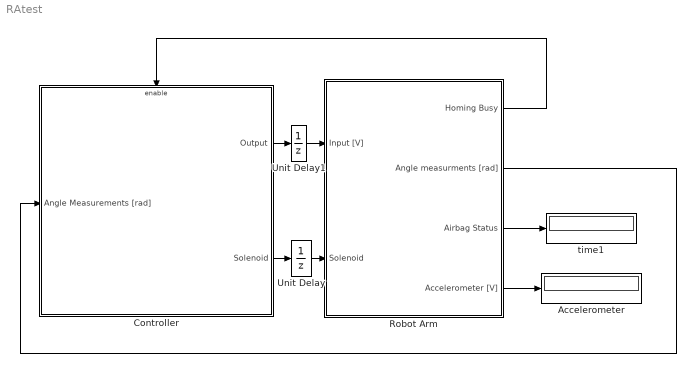
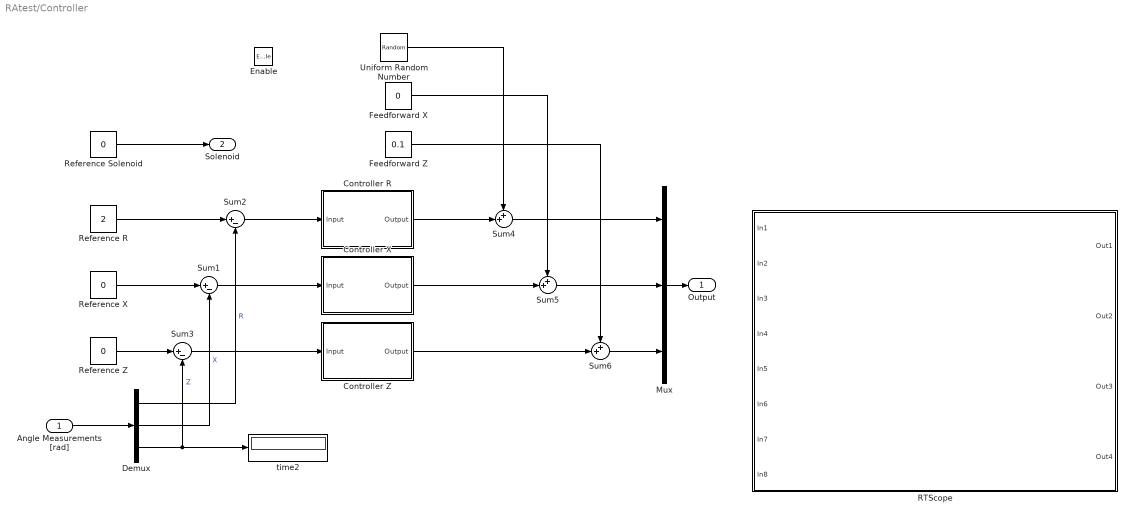
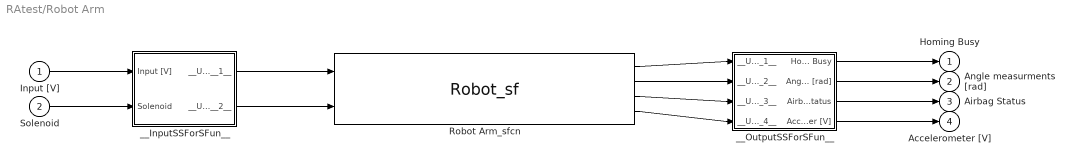
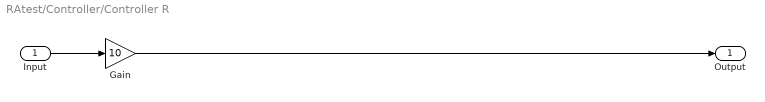
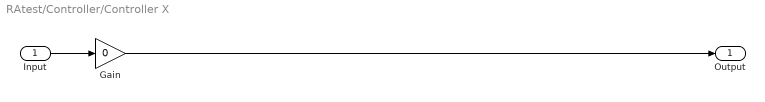
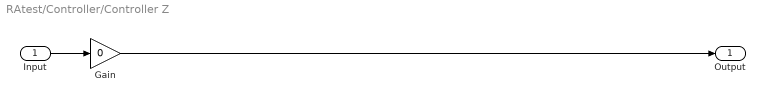
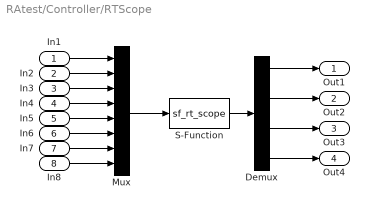
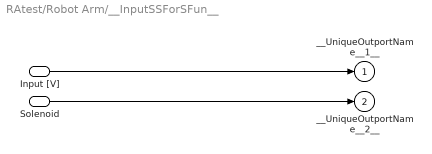
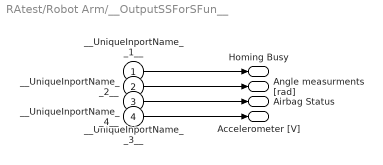
/*
 * RAtest.c
 *
 * Academic License - for use in teaching, academic research, and meeting
 * course requirements at degree granting institutions only.  Not for
 * government, commercial, or other organizational use.
 *
 * Code generation for model "RAtest".
 *
 * Model version              : 1.900
 * Simulink Coder version : 8.9 (R2015b) 13-Aug-2015
 * C source code generated on : Wed Mar 23 16:31:42 2016
 *
 * Target selection: ectarget.tlc
 * Note: GRT includes extra infrastructure and instrumentation for prototyping
 * Embedded hardware selection: 32-bit Generic
 * Code generation objectives: Unspecified
 * Validation result: Not run
 */

#include "RAtest.h"
#include "RAtest_private.h"
#include "RAtest_dt.h"
#undef S_FUNCTION_NAME
#if !defined(RTW_GENERATED_SFCN_TUNABLE_PRMS_Robot_sf)
#define RTW_GENERATED_SFCN_TUNABLE_PRMS_Robot_sf
#endif

#include "Robot_sf.h"

const real_T RAtest_RGND = 0.0;        /* real_T ground */

/* Block signals (auto storage) */
B_RAtest_T RAtest_B;

/* Block states (auto storage) */
DW_RAtest_T RAtest_DW;

/* Real-time model */
RT_MODEL_RAtest_T RAtest_M_;
RT_MODEL_RAtest_T *const RAtest_M = &RAtest_M_;
real_T rt_urand_Upu32_Yd_f_pw_snf(uint32_T *u)
{
  uint32_T lo;
  uint32_T hi;

  /* Uniform random number generator (random number between 0 and 1)

     #define IA      16807                      magic multiplier = 7^5
     #define IM      2147483647                 modulus = 2^31-1
     #define IQ      127773                     IM div IA
     #define IR      2836                       IM modulo IA
     #define S       4.656612875245797e-10      reciprocal of 2^31-1
     test = IA * (seed % IQ) - IR * (seed/IQ)
     seed = test < 0 ? (test + IM) : test
     return (seed*S)
   */
  lo = *u % 127773U * 16807U;
  hi = *u / 127773U * 2836U;
  if (lo < hi) {
    *u = 2147483647U - (hi - lo);
  } else {
    *u = lo - hi;
  }

  return (real_T)*u * 4.6566128752457969E-10;
}

/* Model output function */
void RAtest_output(void)
{
  /* Reset subsysRan breadcrumbs */
  srClearBC(RAtest_DW.Controller_SubsysRanBC);

  /* UnitDelay: '<Root>/Unit Delay1' */
  RAtest_B.UnitDelay1[0] = RAtest_DW.UnitDelay1_DSTATE[0];
  RAtest_B.UnitDelay1[1] = RAtest_DW.UnitDelay1_DSTATE[1];
  RAtest_B.UnitDelay1[2] = RAtest_DW.UnitDelay1_DSTATE[2];

  /* UnitDelay: '<Root>/Unit Delay' */
  RAtest_B.UnitDelay = RAtest_DW.UnitDelay_DSTATE;

  /* RTW Generated Level2 S-Function Block: '<S2>/Robot Arm_sfcn' (Robot_sf) */
  {
    SimStruct *rts = RAtest_M->childSfunctions[1];
    sfcnOutputs(rts, 0);
  }

  /* Outputs for Enabled SubSystem: '<Root>/Controller' incorporates:
   *  EnablePort: '<S1>/Enable'
   */
  if (RAtest_B.RobotArm_sfcn_o1 > 0.0) {
    if (!RAtest_DW.Controller_MODE) {
      RAtest_DW.Controller_MODE = true;
    }
  } else {
    if (RAtest_DW.Controller_MODE) {
      RAtest_DW.Controller_MODE = false;
    }
  }

  if (RAtest_DW.Controller_MODE) {
    /* UniformRandomNumber: '<S1>/Uniform Random Number' */
    RAtest_B.UniformRandomNumber = RAtest_DW.UniformRandomNumber_NextOutput;

    /* Sum: '<S1>/Sum4' incorporates:
     *  Constant: '<S1>/Reference R'
     *  Gain: '<S3>/Gain'
     *  Sum: '<S1>/Sum2'
     */
    RAtest_B.Sum4 = (RAtest_P.ReferenceR_Value - RAtest_B.RobotArm_sfcn_o2[0]) *
      RAtest_P.Gain_Gain + RAtest_B.UniformRandomNumber;

    /* Sum: '<S1>/Sum5' incorporates:
     *  Constant: '<S1>/Feedforward X'
     *  Constant: '<S1>/Reference X'
     *  Gain: '<S4>/Gain'
     *  Sum: '<S1>/Sum1'
     */
    RAtest_B.Sum5 = (RAtest_P.ReferenceX_Value - RAtest_B.RobotArm_sfcn_o2[1]) *
      RAtest_P.Gain_Gain_e + RAtest_P.FeedforwardX_Value;

    /* Sum: '<S1>/Sum6' incorporates:
     *  Constant: '<S1>/Feedforward Z'
     *  Constant: '<S1>/Reference Z'
     *  Gain: '<S5>/Gain'
     *  Sum: '<S1>/Sum3'
     */
    RAtest_B.Sum6 = (RAtest_P.ReferenceZ_Value - RAtest_B.RobotArm_sfcn_o2[2]) *
      RAtest_P.Gain_Gain_l + RAtest_P.FeedforwardZ_Value;

    /* Constant: '<S1>/Reference Solenoid' */
    RAtest_B.ReferenceSolenoid = RAtest_P.ReferenceSolenoid_Value;

    /* Level2 S-Function Block: '<S6>/S-Function' (sf_rt_scope) */
    {
      SimStruct *rts = RAtest_M->childSfunctions[0];
      sfcnOutputs(rts, 0);
    }

    srUpdateBC(RAtest_DW.Controller_SubsysRanBC);
  }

  /* End of Outputs for SubSystem: '<Root>/Controller' */
}

/* Model update function */
void RAtest_update(void)
{
  /* Update for UnitDelay: '<Root>/Unit Delay1' */
  RAtest_DW.UnitDelay1_DSTATE[0] = RAtest_B.Sum4;
  RAtest_DW.UnitDelay1_DSTATE[1] = RAtest_B.Sum5;
  RAtest_DW.UnitDelay1_DSTATE[2] = RAtest_B.Sum6;

  /* Update for UnitDelay: '<Root>/Unit Delay' */
  RAtest_DW.UnitDelay_DSTATE = RAtest_B.ReferenceSolenoid;

  /* RTW Generated Level2 S-Function Block: '<S2>/Robot Arm_sfcn' (Robot_sf) */
  {
    SimStruct *rts = RAtest_M->childSfunctions[1];
    sfcnUpdate(rts, 0);
    if (ssGetErrorStatus(rts) != (NULL))
      return;
  }

  /* Update for Enabled SubSystem: '<Root>/Controller' incorporates:
   *  Update for EnablePort: '<S1>/Enable'
   */
  if (RAtest_DW.Controller_MODE) {
    /* Update for UniformRandomNumber: '<S1>/Uniform Random Number' */
    RAtest_DW.UniformRandomNumber_NextOutput =
      (RAtest_P.UniformRandomNumber_Maximum -
       RAtest_P.UniformRandomNumber_Minimum) * rt_urand_Upu32_Yd_f_pw_snf
      (&RAtest_DW.RandSeed) + RAtest_P.UniformRandomNumber_Minimum;
  }

  /* End of Update for SubSystem: '<Root>/Controller' */

  /* Update absolute time for base rate */
  /* The "clockTick0" counts the number of times the code of this task has
   * been executed. The absolute time is the multiplication of "clockTick0"
   * and "Timing.stepSize0". Size of "clockTick0" ensures timer will not
   * overflow during the application lifespan selected.
   * Timer of this task consists of two 32 bit unsigned integers.
   * The two integers represent the low bits Timing.clockTick0 and the high bits
   * Timing.clockTickH0. When the low bit overflows to 0, the high bits increment.
   */
  if (!(++RAtest_M->Timing.clockTick0)) {
    ++RAtest_M->Timing.clockTickH0;
  }

  RAtest_M->Timing.t[0] = RAtest_M->Timing.clockTick0 *
    RAtest_M->Timing.stepSize0 + RAtest_M->Timing.clockTickH0 *
    RAtest_M->Timing.stepSize0 * 4294967296.0;

  {
    /* Update absolute timer for sample time: [0.000244140625s, 0.0s] */
    /* The "clockTick1" counts the number of times the code of this task has
     * been executed. The absolute time is the multiplication of "clockTick1"
     * and "Timing.stepSize1". Size of "clockTick1" ensures timer will not
     * overflow during the application lifespan selected.
     * Timer of this task consists of two 32 bit unsigned integers.
     * The two integers represent the low bits Timing.clockTick1 and the high bits
     * Timing.clockTickH1. When the low bit overflows to 0, the high bits increment.
     */
    if (!(++RAtest_M->Timing.clockTick1)) {
      ++RAtest_M->Timing.clockTickH1;
    }

    RAtest_M->Timing.t[1] = RAtest_M->Timing.clockTick1 *
      RAtest_M->Timing.stepSize1 + RAtest_M->Timing.clockTickH1 *
      RAtest_M->Timing.stepSize1 * 4294967296.0;
  }
}
